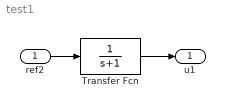
//
// File: test1.cpp
//
// Code generated for Simulink model 'test1'.
//
// Model version                  : 1.2
// Simulink Coder version         : 8.12 (R2017a) 16-Feb-2017
// C/C++ source code generated on : Mon Feb 12 13:45:31 2018
//
// Target selection: ert.tlc
// Embedded hardware selection: ARM Compatible->ARM Cortex
// Code generation objectives:
//    1. Execution efficiency
//    2. RAM efficiency
// Validation result: Not run
//
#include "test1.h"

// Private macros used by the generated code to access rtModel
#ifndef rtmIsMajorTimeStep
# define rtmIsMajorTimeStep(rtm)       (((rtm)->Timing.simTimeStep) == MAJOR_TIME_STEP)
#endif

#ifndef rtmIsMinorTimeStep
# define rtmIsMinorTimeStep(rtm)       (((rtm)->Timing.simTimeStep) == MINOR_TIME_STEP)
#endif

#ifndef rtmGetTPtr
# define rtmGetTPtr(rtm)               ((rtm)->Timing.t)
#endif

#ifndef rtmSetTPtr
# define rtmSetTPtr(rtm, val)          ((rtm)->Timing.t = (val))
#endif

// private model entry point functions
extern void test1_derivatives();

//
// This function updates continuous states using the ODE3 fixed-step
// solver algorithm
//
void test1ModelClass::rt_ertODEUpdateContinuousStates(RTWSolverInfo *si )
{
  // Solver Matrices
  static const real_T rt_ODE3_A[3] = {
    1.0/2.0, 3.0/4.0, 1.0
  };

  static const real_T rt_ODE3_B[3][3] = {
    { 1.0/2.0, 0.0, 0.0 },

    { 0.0, 3.0/4.0, 0.0 },

    { 2.0/9.0, 1.0/3.0, 4.0/9.0 }
  };

  time_T t = rtsiGetT(si);
  time_T tnew = rtsiGetSolverStopTime(si);
  time_T h = rtsiGetStepSize(si);
  real_T *x = rtsiGetContStates(si);
  ODE3_IntgData *id = (ODE3_IntgData *)rtsiGetSolverData(si);
  real_T *y = id->y;
  real_T *f0 = id->f[0];
  real_T *f1 = id->f[1];
  real_T *f2 = id->f[2];
  real_T hB[3];
  int_T i;
  int_T nXc = 1;
  rtsiSetSimTimeStep(si,MINOR_TIME_STEP);

  // Save the state values at time t in y, we'll use x as ynew.
  (void) memcpy(y, x,
                (uint_T)nXc*sizeof(real_T));

  // Assumes that rtsiSetT and ModelOutputs are up-to-date
  // f0 = f(t,y)
  rtsiSetdX(si, f0);
  test1_derivatives();

  // f(:,2) = feval(odefile, t + hA(1), y + f*hB(:,1), args(:)(*));
  hB[0] = h * rt_ODE3_B[0][0];
  for (i = 0; i < nXc; i++) {
    x[i] = y[i] + (f0[i]*hB[0]);
  }

  rtsiSetT(si, t + h*rt_ODE3_A[0]);
  rtsiSetdX(si, f1);
  this->step();
  test1_derivatives();

  // f(:,3) = feval(odefile, t + hA(2), y + f*hB(:,2), args(:)(*));
  for (i = 0; i <= 1; i++) {
    hB[i] = h * rt_ODE3_B[1][i];
  }

  for (i = 0; i < nXc; i++) {
    x[i] = y[i] + (f0[i]*hB[0] + f1[i]*hB[1]);
  }

  rtsiSetT(si, t + h*rt_ODE3_A[1]);
  rtsiSetdX(si, f2);
  this->step();
  test1_derivatives();

  // tnew = t + hA(3);
  // ynew = y + f*hB(:,3);
  for (i = 0; i <= 2; i++) {
    hB[i] = h * rt_ODE3_B[2][i];
  }

  for (i = 0; i < nXc; i++) {
    x[i] = y[i] + (f0[i]*hB[0] + f1[i]*hB[1] + f2[i]*hB[2]);
  }

  rtsiSetT(si, tnew);
  rtsiSetSimTimeStep(si,MAJOR_TIME_STEP);
}

// Model step function
void test1ModelClass::step()
{
  if (rtmIsMajorTimeStep((&rtM))) {
    // set solver stop time
    rtsiSetSolverStopTime(&(&rtM)->solverInfo,(((&rtM)->Timing.clockTick0+1)*
      (&rtM)->Timing.stepSize0));
  }                                    // end MajorTimeStep

  // Update absolute time of base rate at minor time step
  if (rtmIsMinorTimeStep((&rtM))) {
    (&rtM)->Timing.t[0] = rtsiGetT(&(&rtM)->solverInfo);
  }

  // Outport: '<Root>/u1' incorporates:
  //   TransferFcn: '<Root>/Transfer Fcn'

  rtY.u1 = rtX.TransferFcn_CSTATE;
  if (rtmIsMajorTimeStep((&rtM))) {
    rt_ertODEUpdateContinuousStates(&(&rtM)->solverInfo);

    // Update absolute time for base rate
    // The "clockTick0" counts the number of times the code of this task has
    //  been executed. The absolute time is the multiplication of "clockTick0"
    //  and "Timing.stepSize0". Size of "clockTick0" ensures timer will not
    //  overflow during the application lifespan selected.

    ++(&rtM)->Timing.clockTick0;
    (&rtM)->Timing.t[0] = rtsiGetSolverStopTime(&(&rtM)->solverInfo);
  }                                    // end MajorTimeStep
}
